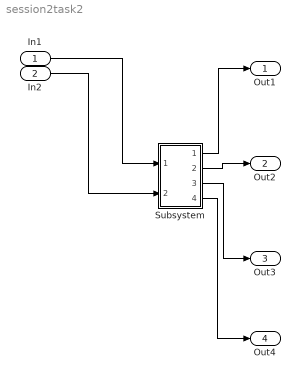
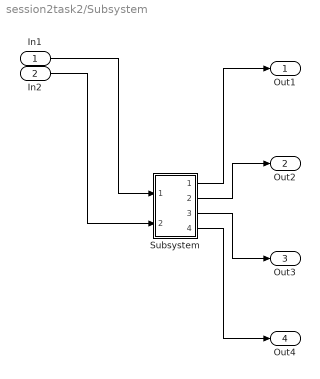
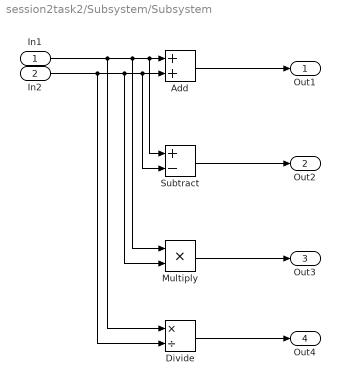
/*
 * File: session2task2.c
 *
 * Code generated for Simulink model 'session2task2'.
 *
 * Model version                  : 1.2
 * Simulink Coder version         : 9.0 (R2018b) 24-May-2018
 * C/C++ source code generated on : Tue Mar 22 07:56:18 2022
 *
 * Target selection: ert.tlc
 * Embedded hardware selection: Intel->x86-64 (Windows64)
 * Code generation objectives: Unspecified
 * Validation result: Not run
 */

#include "session2task2.h"
#include "session2task2_private.h"

/* External inputs (root inport signals with default storage) */
ExtU_session2task2_T session2task2_U;

/* External outputs (root outports fed by signals with default storage) */
ExtY_session2task2_T session2task2_Y;

/* Real-time model */
RT_MODEL_session2task2_T session2task2_M_;
RT_MODEL_session2task2_T *const session2task2_M = &session2task2_M_;

/* Model step function */
void session2task2_step(void)
{
  /* Outport: '<Root>/Out1' incorporates:
   *  Inport: '<Root>/In1'
   *  Inport: '<Root>/In2'
   *  Sum: '<S2>/Add'
   */
  session2task2_Y.Out1 = session2task2_U.In1 + session2task2_U.In2;

  /* Outport: '<Root>/Out2' incorporates:
   *  Inport: '<Root>/In1'
   *  Inport: '<Root>/In2'
   *  Sum: '<S2>/Subtract'
   */
  session2task2_Y.Out2 = session2task2_U.In1 - session2task2_U.In2;

  /* Outport: '<Root>/Out3' incorporates:
   *  Inport: '<Root>/In1'
   *  Inport: '<Root>/In2'
   *  Product: '<S2>/Multiply'
   */
  session2task2_Y.Out3 = session2task2_U.In1 * session2task2_U.In2;

  /* Outport: '<Root>/Out4' incorporates:
   *  Inport: '<Root>/In1'
   *  Inport: '<Root>/In2'
   *  Product: '<S2>/Divide'
   */
  session2task2_Y.Out4 = session2task2_U.In1 / session2task2_U.In2;
}
